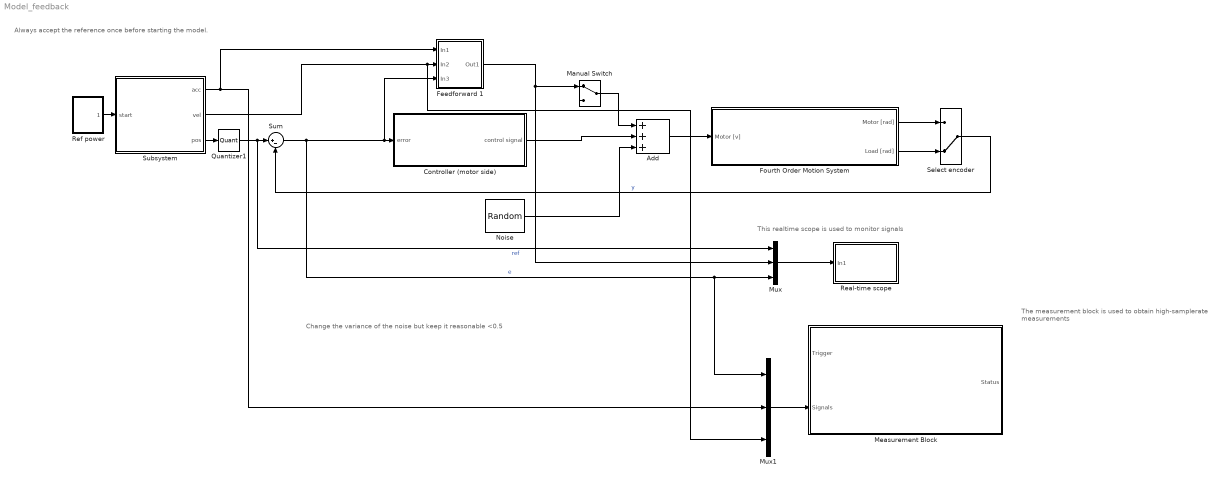
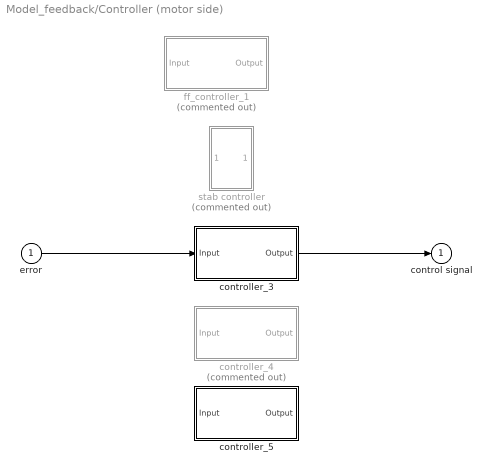
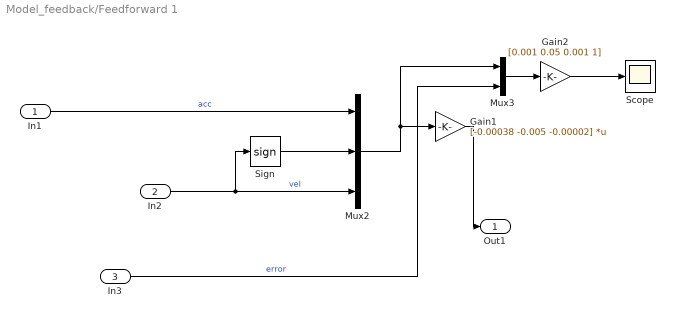
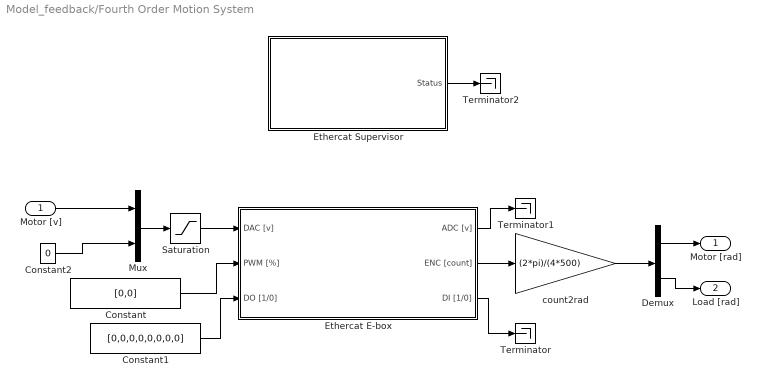
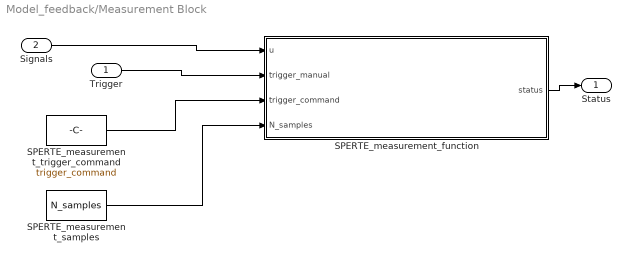
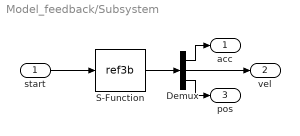
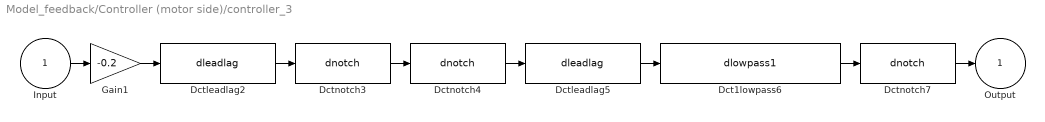
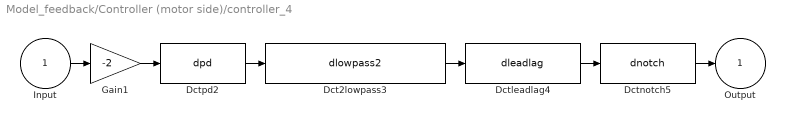
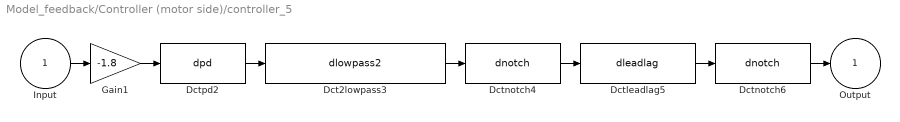
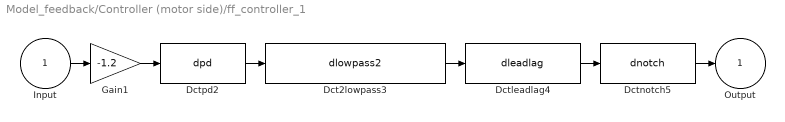
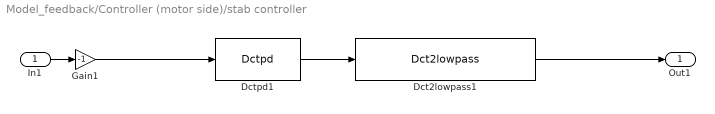
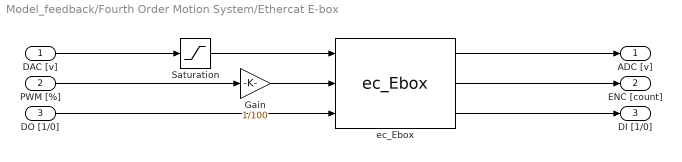
== system Model_feedback/Real-time scope ==
  note: The default scope sample rate is 500 Hz. This can be changed by right-click on the Realtime Scope block. Then selecting -> Mask -> Mask parameters.
  In1 : Inport
  Buffer : SignalConversion  OverrideOpt=off
  Downsample : RateTransition  OutPortSampleTime=Sample_Time
  Live_Scope : Scope
  wires:
  In1/1 -> Buffer/1
  Downsample/1 -> Live_Scope/1
  Buffer/1 -> Downsample/1

== system Model_feedback/Ref power ==
  Start setpoint : Constant  Value=stat
  On/Off : Outport
  wires:
  Start setpoint/1 -> On/Off/1

== system Model_feedback/Fourth Order Motion System/Ethercat Supervisor ==
  note: Status, 0 = Operational, 1 = error
  S-Function : S-Function  FunctionName=ec_Supervisor  Parameters=portid,ectimeout  SFunctionDeploymentMode=off  EnableBusSupport=off
  Status : Outport
  wires:
  S-Function/1 -> Status/1

== matlab function Model_feedback/Measurement Block/SPERTE_measurement_function ==
function status = perform_measurement(u, trigger_manual, trigger_command, triggertype, N_samples)

%% Persistent variables
persistent fileID NF busy NS

% Init parameters
if isempty(NF)
    NF = int16(0);
end
if isempty(NS)
    NS = uint32(0);
end
if isempty(fileID)
    fileID = 0;
end
if isempty(busy)
    busy = uint8(0);
end

%% Check the triggers
if ( (triggertype == 0 && trigger_manual == 1) || (triggertype == 1 && trigger_command == 1) || (triggertype == 2 && (trigger_command == 1 || trigger_manual == 1) ) )
    if busy == 1
        % We are already busy, nothing to do
    else
        % We should start a new one
        fileID = fopen(sprintf('measurement_%d.bin',NF),'w');  
        NF = NF + 1;
        busy = uint8(1);
        NS = uint32(0);
    end
end

% We have started a measurement
if busy == 1
    if NS < N_samples 
        % Here we write the sample, in single precision float
        fwrite(fileID,u,'single');
        NS = NS + uint32(1);
    else
       % We have N samples already, we are done
       fclose(fileID);
       busy = uint8(0);
       NS = uint32(0);
    end
      
end
    % Output state
    status = uint8(busy);
end

/*
 * Model_feedback.c
 *
 * Academic License - for use in teaching, academic research, and meeting
 * course requirements at degree granting institutions only.  Not for
 * government, commercial, or other organizational use.
 *
 * Code generation for model "Model_feedback".
 *
 * Model version              : 9.14
 * Simulink Coder version : 9.8 (R2022b) 13-May-2022
 * C source code generated on : Fri Mar 21 13:16:35 2025
 *
 * Target selection: ert.tlc
 * Note: GRT includes extra infrastructure and instrumentation for prototyping
 * Embedded hardware selection: ARM Compatible->ARM Cortex
 * Code generation objectives: Unspecified
 * Validation result: Not run
 */

#include "Model_feedback.h"
#include "Model_feedback_types.h"
#include "rtwtypes.h"
#include <string.h>
#include <math.h>
#include "rt_nonfinite.h"
#include "Model_feedback_private.h"
#include <stdio.h>
#include <stddef.h>
#include <stdlib.h>
#include "Model_feedback_dt.h"

/* Block signals (default storage) */
B_Model_feedback_T Model_feedback_B;

/* Block states (default storage) */
DW_Model_feedback_T Model_feedback_DW;

/* Real-time model */
static RT_MODEL_Model_feedback_T Model_feedback_M_;
RT_MODEL_Model_feedback_T *const Model_feedback_M = &Model_feedback_M_;

/* Forward declaration for local functions */
static void Model_feedback_emxInit_char_T(emxArray_char_T_Model_feedbac_T
  **pEmxArray, int32_T numDimensions);
static void Model__emxEnsureCapacity_char_T(emxArray_char_T_Model_feedbac_T
  *emxArray, int32_T oldNumel);
static void Model_feedback_emxFree_char_T(emxArray_char_T_Model_feedbac_T
  **pEmxArray);
static int8_T Model_feedback_filedata(void);
static int8_T Model_feedback_cfopen(const emxArray_char_T_Model_feedbac_T
  *cfilename, const char_T *cpermission);
static int32_T Model_feedback_cfclose(real_T fid);
static void rate_monotonic_scheduler(void);

/*
 * Set which subrates need to run this base step (base rate always runs).
 * This function must be called prior to calling the model step function
 * in order to remember which rates need to run this base step.  The
 * buffering of events allows for overlapping preemption.
 */
void Model_feedback_SetEventsForThisBaseStep(boolean_T *eventFlags)
{
  /* Task runs when its counter is zero, computed via rtmStepTask macro */
  eventFlags[2] = ((boolean_T)rtmStepTask(Model_feedback_M, 2));
}

/*
 *         This function updates active task flag for each subrate
 *         and rate transition flags for tasks that exchange data.
 *         The function assumes rate-monotonic multitasking scheduler.
 *         The function must be called at model base rate so that
 *         the generated code self-manages all its subrates and rate
 *         transition flags.
 */
static void rate_monotonic_scheduler(void)
{
  /* To ensure a deterministic data transfer between two rates,
   * data is transferred at the priority of a fast task and the frequency
   * of the slow task.  The following flags indicate when the data transfer
   * happens.  That is, a rate interaction flag is set true when both rates
   * will run, and false otherwise.
   */

  /* tid 1 shares data with slower tid rate: 2 */
  if (Model_feedback_M->Timing.TaskCounters.TID[1] == 0) {
    Model_feedback_M->Timing.RateInteraction.TID1_2 =
      (Model_feedback_M->Timing.TaskCounters.TID[2] == 0);

    /* update PerTaskSampleHits matrix for non-inline sfcn */
    Model_feedback_M->Timing.perTaskSampleHits[5] =
      Model_feedback_M->Timing.RateInteraction.TID1_2;
  }

  /* Compute which subrates run during the next base time step.  Subrates
   * are an integer multiple of the base rate counter.  Therefore, the subtask
   * counter is reset when it reaches its limit (zero means run).
   */
  (Model_feedback_M->Timing.TaskCounters.TID[2])++;
  if ((Model_feedback_M->Timing.TaskCounters.TID[2]) > 7) {/* Sample time: [0.002s, 0.0s] */
    Model_feedback_M->Timing.TaskCounters.TID[2] = 0;
  }
}

real_T rt_urand_Upu32_Yd_f_pw_snf(uint32_T *u)
{
  uint32_T hi;
  uint32_T lo;

  /* Uniform random number generator (random number between 0 and 1)

     #define IA      16807                      magic multiplier = 7^5
     #define IM      2147483647                 modulus = 2^31-1
     #define IQ      127773                     IM div IA
     #define IR      2836                       IM modulo IA
     #define S       4.656612875245797e-10      reciprocal of 2^31-1
     test = IA * (seed % IQ) - IR * (seed/IQ)
     seed = test < 0 ? (test + IM) : test
     return (seed*S)
   */
  lo = *u % 127773U * 16807U;
  hi = *u / 127773U * 2836U;
  if (lo < hi) {
    *u = 2147483647U - (hi - lo);
  } else {
    *u = lo - hi;
  }

  return (real_T)*u * 4.6566128752457969E-10;
}

real_T rt_nrand_Upu32_Yd_f_pw_snf(uint32_T *u)
{
  real_T si;
  real_T sr;
  real_T y;

  /* Normal (Gaussian) random number generator */
  do {
    sr = 2.0 * rt_urand_Upu32_Yd_f_pw_snf(u) - 1.0;
    si = 2.0 * rt_urand_Upu32_Yd_f_pw_snf(u) - 1.0;
    si = sr * sr + si * si;
  } while (si > 1.0);

  y = sqrt(-2.0 * log(si) / si) * sr;
  return y;
}

real_T rt_roundd_snf(real_T u)
{
  real_T y;
  if (fabs(u) < 4.503599627370496E+15) {
    if (u >= 0.5) {
      y = floor(u + 0.5);
    } else if (u > -0.5) {
      y = u * 0.0;
    } else {
      y = ceil(u - 0.5);
    }
  } else {
    y = u;
  }

  return y;
}

static void Model_feedback_emxInit_char_T(emxArray_char_T_Model_feedbac_T
  **pEmxArray, int32_T numDimensions)
{
  emxArray_char_T_Model_feedbac_T *emxArray;
  int32_T i;
  *pEmxArray = (emxArray_char_T_Model_feedbac_T *)malloc(sizeof
    (emxArray_char_T_Model_feedbac_T));
  emxArray = *pEmxArray;
  emxArray->data = (char_T *)NULL;
  emxArray->numDimensions = numDimensions;
  emxArray->size = (int32_T *)malloc(sizeof(int32_T) * (uint32_T)numDimensions);
  emxArray->allocatedSize = 0;
  emxArray->canFreeData = true;
  for (i = 0; i < numDimensions; i++) {
    emxArray->size[i] = 0;
  }
}

static void Model__emxEnsureCapacity_char_T(emxArray_char_T_Model_feedbac_T
  *emxArray, int32_T oldNumel)
{
  int32_T i;
  int32_T newNumel;
  void *newData;
  if (oldNumel < 0) {
    oldNumel = 0;
  }

  newNumel = 1;
  for (i = 0; i < emxArray->numDimensions; i++) {
    newNumel *= emxArray->size[i];
  }

  if (newNumel > emxArray->allocatedSize) {
    i = emxArray->allocatedSize;
    if (i < 16) {
      i = 16;
    }

    while (i < newNumel) {
      if (i > 1073741823) {
        i = MAX_int32_T;
      } else {
        i <<= 1;
      }
    }

    newData = calloc((uint32_T)i, sizeof(char_T));
    if (emxArray->data != NULL) {
      memcpy(newData, emxArray->data, sizeof(char_T) * (uint32_T)oldNumel);
      if (emxArray->canFreeData) {
        free(emxArray->data);
      }
    }

    emxArray->data = (char_T *)newData;
    emxArray->allocatedSize = i;
    emxArray->canFreeData = true;
  }
}

static void Model_feedback_emxFree_char_T(emxArray_char_T_Model_feedbac_T
  **pEmxArray)
{
  if (*pEmxArray != (emxArray_char_T_Model_feedbac_T *)NULL) {
    if (((*pEmxArray)->data != (char_T *)NULL) && (*pEmxArray)->canFreeData) {
      free((*pEmxArray)->data);
    }

    free((*pEmxArray)->size);
    free(*pEmxArray);
    *pEmxArray = (emxArray_char_T_Model_feedbac_T *)NULL;
  }
}

/* Function for MATLAB Function: '<S4>/SPERTE_measurement_function' */
static int8_T Model_feedback_filedata(void)
{
  int32_T k;
  int8_T f;
  boolean_T exitg1;
  f = 0;
  k = 1;
  exitg1 = false;
  while ((!exitg1) && (k - 1 < 20)) {
    if (Model_feedback_DW.eml_openfiles[(int8_T)k - 1] == NULL) {
      f = (int8_T)k;
      exitg1 = true;
    } else {
      k++;
    }
  }

  return f;
}

/* Function for MATLAB Function: '<S4>/SPERTE_measurement_function' */
static int8_T Model_feedback_cfopen(const emxArray_char_T_Model_feedbac_T
  *cfilename, const char_T *cpermission)
{
  emxArray_char_T_Model_feedbac_T *ccfilename;
  int32_T loop_ub;
  int8_T fileid;
  int8_T j;
  fileid = -1;
  j = Model_feedback_filedata();
  if (j >= 1) {
    Model_feedback_emxInit_char_T(&ccfilename, 2);
    loop_ub = ccfilename->size[0] * ccfilename->size[1];
    ccfilename->size[0] = 1;
    ccfilename->size[1] = cfilename->size[1] + 1;
    Model__emxEnsureCapacity_char_T(ccfilename, loop_ub);
    loop_ub = cfilename->size[1];
    if (loop_ub - 1 >= 0) {
      memcpy(&ccfilename->data[0], &cfilename->data[0], (uint32_T)loop_ub *
             sizeof(char_T));
    }

    ccfilename->data[cfilename->size[1]] = '\x00';
    Model_feedback_B.filestar_m = fopen(&ccfilename->data[0], cpermission);
    Model_feedback_emxFree_char_T(&ccfilename);
    if (Model_feedback_B.filestar_m != NULL) {
      Model_feedback_DW.eml_openfiles[j - 1] = Model_feedback_B.filestar_m;
      Model_feedback_DW.eml_autoflush[j - 1] = true;
      loop_ub = j + 2;
      if (j + 2 > 127) {
        loop_ub = 127;
      }

      fileid = (int8_T)loop_ub;
    }
  }

  return fileid;
}

/* Function for MATLAB Function: '<S4>/SPERTE_measurement_function' */
static int32_T Model_feedback_cfclose(real_T fid)
{
  FILE* filestar;
  int32_T cst;
  int32_T st;
  int8_T b_fileid;
  int8_T fileid;
  st = -1;
  fileid = (int8_T)fid;
  if (((int8_T)fid < 0) || (fid != (int8_T)fid)) {
    fileid = -1;
  }

  b_fileid = fileid;
  if (fileid < 0) {
    b_fileid = -1;
  }

  if (b_fileid >= 3) {
    filestar = Model_feedback_DW.eml_openfiles[b_fileid - 3];
  } else if (b_fileid == 0) {
    filestar = stdin;
  } else if (b_fileid == 1) {
    filestar = stdout;
  } else if (b_fileid == 2) {
    filestar = stderr;
  } else {
    filestar = NULL;
  }

  if ((filestar != NULL) && (fileid >= 3)) {
    cst = fclose(filestar);
    if (cst == 0) {
      st = 0;
      Model_feedback_DW.eml_openfiles[fileid - 3] = NULL;
      Model_feedback_DW.eml_autoflush[fileid - 3] = true;
    }
  }

  return st;
}

/* Model step function for TID0 */
void Model_feedback_step0(void)        /* Sample time: [0.0s, 0.0s] */
{
  emxArray_char_T_Model_feedbac_T *str;
  emxArray_char_T_Model_feedbac_T *str_0;
  int32_T nbytes;
  int32_T tmp;
  uint32_T qY;
  int8_T b_fileid;
  boolean_T autoflush;

  {                                    /* Sample time: [0.0s, 0.0s] */
    rate_monotonic_scheduler();
  }

  /* Constant: '<S6>/Start setpoint' */
  Model_feedback_B.Startsetpoint = Model_feedback_P.Refpower_stat;

  /* S-Function (ref3b): '<S7>/S-Function' */

  /* Level2 S-Function Block: '<S7>/S-Function' (ref3b) */
  {
    SimStruct *rts = Model_feedback_M->childSfunctions[0];
    sfcnOutputs(rts,0);
  }

  /* Quantizer: '<Root>/Quantizer1' */
  Model_feedback_B.ref = rt_roundd_snf(Model_feedback_B.SFunction[2] /
    Model_feedback_P.Quantizer1_Interval) * Model_feedback_P.Quantizer1_Interval;

  /* S-Function (ec_Supervisor): '<S11>/S-Function' */

  /* Level2 S-Function Block: '<S11>/S-Function' (ec_Supervisor) */
  {
    SimStruct *rts = Model_feedback_M->childSfunctions[1];
    sfcnOutputs(rts,0);
  }

  /* S-Function (ec_Ebox): '<S10>/ec_Ebox' */

  /* Level2 S-Function Block: '<S10>/ec_Ebox' (ec_Ebox) */
  {
    SimStruct *rts = Model_feedback_M->childSfunctions[2];
    sfcnOutputs(rts,0);
  }

  /* ManualSwitch: '<Root>/Select encoder' incorporates:
   *  Gain: '<S3>/count2rad'
   */
  if (Model_feedback_P.Selectencoder_CurrentSetting == 1) {
    Model_feedback_B.Sign = Model_feedback_P.count2rad_Gain *
      Model_feedback_B.ec_Ebox_o2[0];
  } else {
    Model_feedback_B.Sign = Model_feedback_P.count2rad_Gain *
      Model_feedback_B.ec_Ebox_o2[1];
  }

  /* Sum: '<Root>/Sum' incorporates:
   *  ManualSwitch: '<Root>/Select encoder'
   */
  Model_feedback_B.e = Model_feedback_B.ref - Model_feedback_B.Sign;

  /* MATLAB Function: '<S4>/SPERTE_measurement_function' incorporates:
   *  Constant: '<S4>/SPERTE_measurement_samples'
   *  Constant: '<S4>/SPERTE_measurement_trigger_command'
   *  SignalConversion generated from: '<S12>/ SFunction '
   */
  if ((((Model_feedback_P.MeasurementBlock_triggertype == 1) &&
        (Model_feedback_P.MeasurementBlock_trigger_comman == 1)) ||
       ((Model_feedback_P.MeasurementBlock_triggertype == 2) &&
        (Model_feedback_P.MeasurementBlock_trigger_comman == 1))) &&
      (Model_feedback_DW.busy != 1)) {
    nbytes = (int32_T)snprintf(NULL, 0, "measurement_%d.bin",
      Model_feedback_DW.NF) + 1;
    Model_feedback_emxInit_char_T(&str, 2);
    tmp = str->size[0] * str->size[1];
    str->size[0] = 1;
    str->size[1] = nbytes;
    Model__emxEnsureCapacity_char_T(str, tmp);
    snprintf(&str->data[0], (size_t)nbytes, "measurement_%d.bin",
             Model_feedback_DW.NF);
    if (nbytes - 1 < 1) {
      nbytes = -1;
    } else {
      nbytes -= 2;
    }

    Model_feedback_emxInit_char_T(&str_0, 2);
    tmp = str_0->size[0] * str_0->size[1];
    str_0->size[0] = 1;
    str_0->size[1] = nbytes + 1;
    Model__emxEnsureCapacity_char_T(str_0, tmp);
    if (nbytes >= 0) {
      memcpy(&str_0->data[0], &str->data[0], (uint32_T)(nbytes + 1) * sizeof
             (char_T));
    }

    Model_feedback_emxFree_char_T(&str);
    b_fileid = Model_feedback_cfopen(str_0, "wb");
    Model_feedback_emxFree_char_T(&str_0);
    Model_feedback_DW.fileID = b_fileid;
    nbytes = Model_feedback_DW.NF + 1;
    if (Model_feedback_DW.NF + 1 > 32767) {
      nbytes = 32767;
    }

    Model_feedback_DW.NF = (int16_T)nbytes;
    Model_feedback_DW.busy = 1U;
    Model_feedback_DW.NS = 0U;
  }

  if (Model_feedback_DW.busy == 1) {
    if (Model_feedback_DW.NS < Model_feedback_P.MeasurementBlock_N_samples) {
      b_fileid = (int8_T)Model_feedback_DW.fileID;
      if (((int8_T)Model_feedback_DW.fileID < 0) || (Model_feedback_DW.fileID !=
           (int8_T)Model_feedback_DW.fileID)) {
        b_fileid = -1;
      }

      if (b_fileid >= 3) {
        Model_feedback_B.filestar = Model_feedback_DW.eml_openfiles[b_fileid - 3];
        autoflush = Model_feedback_DW.eml_autoflush[b_fileid - 3];
      } else if (b_fileid == 0) {
        Model_feedback_B.filestar = stdin;
        autoflush = true;
      } else if (b_fileid == 1) {
        Model_feedback_B.filestar = stdout;
        autoflush = true;
      } else if (b_fileid == 2) {
        Model_feedback_B.filestar = stderr;
        autoflush = true;
      } else {
        Model_feedback_B.filestar = NULL;
        autoflush = true;
      }

      if (!(Model_feedback_DW.fileID != 0.0)) {
        Model_feedback_B.filestar = NULL;
      }

      if (!(Model_feedback_B.filestar == NULL)) {
        Model_feedback_B.xout[0] = (real32_T)Model_feedback_B.e;
        Model_feedback_B.xout[1] = (real32_T)Model_feedback_B.SFunction[0];
        Model_feedback_B.xout[2] = (real32_T)Model_feedback_B.SFunction[1];
        Model_feedback_B.bytesOutSizet = fwrite(&Model_feedback_B.xout[0],
          sizeof(real32_T), (size_t)3, Model_feedback_B.filestar);
        if (((real_T)Model_feedback_B.bytesOutSizet > 0.0) && autoflush) {
          fflush(Model_feedback_B.filestar);
        }
      }

      qY = Model_feedback_DW.NS + 1U;
      if (Model_feedback_DW.NS + 1U < Model_feedback_DW.NS) {
        qY = MAX_uint32_T;
      }

      Model_feedback_DW.NS = qY;
    } else {
      Model_feedback_cfclose(Model_feedback_DW.fileID);
      Model_feedback_DW.busy = 0U;
      Model_feedback_DW.NS = 0U;
    }
  }

  /* End of MATLAB Function: '<S4>/SPERTE_measurement_function' */

  /* Signum: '<S2>/Sign' */
  if (rtIsNaN(Model_feedback_B.SFunction[1])) {
    Model_feedback_B.Sign = (rtNaN);
  } else if (Model_feedback_B.SFunction[1] < 0.0) {
    Model_feedback_B.Sign = -1.0;
  } else {
    Model_feedback_B.Sign = (Model_feedback_B.SFunction[1] > 0.0);
  }

  /* End of Signum: '<S2>/Sign' */

  /* Gain: '<S2>/Gain1' incorporates:
   *  SignalConversion generated from: '<S2>/Gain1'
   */
  Model_feedback_B.Gain1 = (Model_feedback_P.Gain1_Gain[0] *
    Model_feedback_B.SFunction[0] + Model_feedback_P.Gain1_Gain[1] *
    Model_feedback_B.Sign) + Model_feedback_B.SFunction[1] *
    Model_feedback_P.Gain1_Gain[2];

  /* RateTransition: '<S5>/Downsample' */
  if (Model_feedback_M->Timing.RateInteraction.TID1_2) {
    Model_feedback_DW.Downsample_Buffer[0] = Model_feedback_B.ref;
    Model_feedback_DW.Downsample_Buffer[1] = Model_feedback_B.Gain1;
    Model_feedback_DW.Downsample_Buffer[2] = Model_feedback_B.e;
  }

  /* End of RateTransition: '<S5>/Downsample' */

  /* Gain: '<S8>/Gain1' */
  Model_feedback_B.Gain1_p = Model_feedback_P.Gain1_Gain_a * Model_feedback_B.e;

  /* S-Function (dleadlag): '<S8>/Dctleadlag2' */

  /* Level2 S-Function Block: '<S8>/Dctleadlag2' (dleadlag) */
  {
    SimStruct *rts = Model_feedback_M->childSfunctions[3];
    sfcnOutputs(rts,0);
  }

  /* S-Function (dnotch): '<S8>/Dctnotch3' */

  /* Level2 S-Function Block: '<S8>/Dctnotch3' (dnotch) */
  {
    SimStruct *rts = Model_feedback_M->childSfunctions[4];
    sfcnOutputs(rts,0);
  }

  /* S-Function (dnotch): '<S8>/Dctnotch4' */

  /* Level2 S-Function Block: '<S8>/Dctnotch4' (dnotch) */
  {
    SimStruct *rts = Model_feedback_M->childSfunctions[5];
    sfcnOutputs(rts,0);
  }

  /* S-Function (dleadlag): '<S8>/Dctleadlag5' */

  /* Level2 S-Function Block: '<S8>/Dctleadlag5' (dleadlag) */
  {
    SimStruct *rts = Model_feedback_M->childSfunctions[6];
    sfcnOutputs(rts,0);
  }

  /* S-Function (dlowpass1): '<S8>/Dct1lowpass6' */

  /* Level2 S-Function Block: '<S8>/Dct1lowpass6' (dlowpass1) */
  {
    SimStruct *rts = Model_feedback_M->childSfunctions[7];
    sfcnOutputs(rts,0);
  }

  /* S-Function (dnotch): '<S8>/Dctnotch7' */

  /* Level2 S-Function Block: '<S8>/Dctnotch7' (dnotch) */
  {
    SimStruct *rts = Model_feedback_M->childSfunctions[8];
    sfcnOutputs(rts,0);
  }

  /* RandomNumber: '<Root>/Noise' */
  Model_feedback_B.Noise = Model_feedback_DW.NextOutput;

  /* Gain: '<S9>/Gain1' */
  Model_feedback_B.Gain1_l = Model_feedback_P.Gain1_Gain_f * 0.0;

  /* S-Function (dpd): '<S9>/Dctpd2' */

  /* Level2 S-Function Block: '<S9>/Dctpd2' (dpd) */
  {
    SimStruct *rts = Model_feedback_M->childSfunctions[9];
    sfcnOutputs(rts,0);
  }

  /* S-Function (dlowpass2): '<S9>/Dct2lowpass3' */

  /* Level2 S-Function Block: '<S9>/Dct2lowpass3' (dlowpass2) */
  {
    SimStruct *rts = Model_feedback_M->childSfunctions[10];
    sfcnOutputs(rts,0);
  }

  /* S-Function (dnotch): '<S9>/Dctnotch4' */

  /* Level2 S-Function Block: '<S9>/Dctnotch4' (dnotch) */
  {
    SimStruct *rts = Model_feedback_M->childSfunctions[11];
    sfcnOutputs(rts,0);
  }

  /* S-Function (dleadlag): '<S9>/Dctleadlag5' */

  /* Level2 S-Function Block: '<S9>/Dctleadlag5' (dleadlag) */
  {
    SimStruct *rts = Model_feedback_M->childSfunctions[12];
    sfcnOutputs(rts,0);
  }

  /* S-Function (dnotch): '<S9>/Dctnotch6' */

  /* Level2 S-Function Block: '<S9>/Dctnotch6' (dnotch) */
  {
    SimStruct *rts = Model_feedback_M->childSfunctions[13];
    sfcnOutputs(rts,0);
  }

  /* Gain: '<S2>/Gain2' */
  Model_feedback_B.Gain2[0] = Model_feedback_P.Gain2_Gain[0] *
    Model_feedback_B.SFunction[0];
  Model_feedback_B.Gain2[1] = Model_feedback_P.Gain2_Gain[1] *
    Model_feedback_B.Sign;
  Model_feedback_B.Gain2[2] = Model_feedback_B.SFunction[1] *
    Model_feedback_P.Gain2_Gain[2];
  Model_feedback_B.Gain2[3] = Model_feedback_P.Gain2_Gain[3] *
    Model_feedback_B.e;

  /* Constant: '<S3>/Constant1' */
  memcpy(&Model_feedback_B.Constant1[0], &Model_feedback_P.Constant1_Value[0],
         sizeof(real_T) << 3U);

  /* Gain: '<S10>/Gain' incorporates:
   *  Constant: '<S3>/Constant'
   */
  Model_feedback_B.Gain[0] = Model_feedback_P.Gain_Gain *
    Model_feedback_P.Constant_Value[0];
  Model_feedback_B.Gain[1] = Model_feedback_P.Gain_Gain *
    Model_feedback_P.Constant_Value[1];

  /* ManualSwitch: '<Root>/Manual Switch' */
  if (Model_feedback_P.ManualSwitch_CurrentSetting == 1) {
    Model_feedback_B.Sign = Model_feedback_B.Gain1;
  } else {
    Model_feedback_B.Sign = 0.0;
  }

  /* Sum: '<Root>/Add' incorporates:
   *  ManualSwitch: '<Root>/Manual Switch'
   */
  Model_feedback_B.Sign = (Model_feedback_B.Sign + Model_feedback_B.Dctnotch7) +
    Model_feedback_B.Noise;

  /* Saturate: '<S3>/Saturation' */
  if (Model_feedback_B.Sign > Model_feedback_P.Saturation_UpperSat) {
    Model_feedback_B.Sign = Model_feedback_P.Saturation_UpperSat;
  } else if (Model_feedback_B.Sign < Model_feedback_P.Saturation_LowerSat) {
    Model_feedback_B.Sign = Model_feedback_P.Saturation_LowerSat;
  }

  /* Saturate: '<S10>/Saturation' */
  if (Model_feedback_B.Sign > Model_feedback_P.Saturation_UpperSat_d) {
    /* Saturate: '<S10>/Saturation' */
    Model_feedback_B.Saturation[0] = Model_feedback_P.Saturation_UpperSat_d;
  } else if (Model_feedback_B.Sign < Model_feedback_P.Saturation_LowerSat_e) {
    /* Saturate: '<S10>/Saturation' */
    Model_feedback_B.Saturation[0] = Model_feedback_P.Saturation_LowerSat_e;
  } else {
    /* Saturate: '<S10>/Saturation' */
    Model_feedback_B.Saturation[0] = Model_feedback_B.Sign;
  }

  /* Saturate: '<S3>/Saturation' incorporates:
   *  Constant: '<S3>/Constant2'
   */
  if (Model_feedback_P.Constant2_Value > Model_feedback_P.Saturation_UpperSat) {
    Model_feedback_B.Sign = Model_feedback_P.Saturation_UpperSat;
  } else if (Model_feedback_P.Constant2_Value <
             Model_feedback_P.Saturation_LowerSat) {
    Model_feedback_B.Sign = Model_feedback_P.Saturation_LowerSat;
  } else {
    Model_feedback_B.Sign = Model_feedback_P.Constant2_Value;
  }

  /* Saturate: '<S10>/Saturation' */
  if (Model_feedback_B.Sign > Model_feedback_P.Saturation_UpperSat_d) {
    /* Saturate: '<S10>/Saturation' */
    Model_feedback_B.Saturation[1] = Model_feedback_P.Saturation_UpperSat_d;
  } else if (Model_feedback_B.Sign < Model_feedback_P.Saturation_LowerSat_e) {
    /* Saturate: '<S10>/Saturation' */
    Model_feedback_B.Saturation[1] = Model_feedback_P.Saturation_LowerSat_e;
  } else {
    /* Saturate: '<S10>/Saturation' */
    Model_feedback_B.Saturation[1] = Model_feedback_B.Sign;
  }

  /* Update for RandomNumber: '<Root>/Noise' */
  Model_feedback_DW.NextOutput = rt_nrand_Upu32_Yd_f_pw_snf
    (&Model_feedback_DW.RandSeed) * Model_feedback_P.Noise_StdDev +
    Model_feedback_P.Noise_Mean;

  /* External mode */
  rtExtModeUploadCheckTrigger(3);
  rtExtModeUpload(1, (real_T)Model_feedback_M->Timing.t[0]);

  /* signal main to stop simulation */
  {                                    /* Sample time: [0.0s, 0.0s] */
    if ((rtmGetTFinal(Model_feedback_M)!=-1) &&
        !((rtmGetTFinal(Model_feedback_M)-Model_feedback_M->Timing.t[0]) >
          Model_feedback_M->Timing.t[0] * (DBL_EPSILON))) {
      rtmSetErrorStatus(Model_feedback_M, "Simulation finished");
    }

    if (rtmGetStopRequested(Model_feedback_M)) {
      rtmSetErrorStatus(Model_feedback_M, "Simulation finished");
    }
  }

  /* Update absolute time */
  /* The "clockTick0" counts the number of times the code of this task has
   * been executed. The absolute time is the multiplication of "clockTick0"
   * and "Timing.stepSize0". Size of "clockTick0" ensures timer will not
   * overflow during the application lifespan selected.
   * Timer of this task consists of two 32 bit unsigned integers.
   * The two integers represent the low bits Timing.clockTick0 and the high bits
   * Timing.clockTickH0. When the low bit overflows to 0, the high bits increment.
   */
  if (!(++Model_feedback_M->Timing.clockTick0)) {
    ++Model_feedback_M->Timing.clockTickH0;
  }

  Model_feedback_M->Timing.t[0] = Model_feedback_M->Timing.clockTick0 *
    Model_feedback_M->Timing.stepSize0 + Model_feedback_M->Timing.clockTickH0 *
    Model_feedback_M->Timing.stepSize0 * 4294967296.0;

  /* Update absolute time */
  /* The "clockTick1" counts the number of times the code of this task has
   * been executed. The absolute time is the multiplication of "clockTick1"
   * and "Timing.stepSize1". Size of "clockTick1" ensures timer will not
   * overflow during the application lifespan selected.
   * Timer of this task consists of two 32 bit unsigned integers.
   * The two integers represent the low bits Timing.clockTick1 and the high bits
   * Timing.clockTickH1. When the low bit overflows to 0, the high bits increment.
   */
  if (!(++Model_feedback_M->Timing.clockTick1)) {
    ++Model_feedback_M->Timing.clockTickH1;
  }

  Model_feedback_M->Timing.t[1] = Model_feedback_M->Timing.clockTick1 *
    Model_feedback_M->Timing.stepSize1 + Model_feedback_M->Timing.clockTickH1 *
    Model_feedback_M->Timing.stepSize1 * 4294967296.0;
}

/* Model step function for TID2 */
void Model_feedback_step2(void)        /* Sample time: [0.002s, 0.0s] */
{
  /* RateTransition: '<S5>/Downsample' */
  Model_feedback_B.Downsample[0] = Model_feedback_DW.Downsample_Buffer[0];
  Model_feedback_B.Downsample[1] = Model_feedback_DW.Downsample_Buffer[1];
  Model_feedback_B.Downsample[2] = Model_feedback_DW.Downsample_Buffer[2];
  rtExtModeUpload(2, (real_T)(((Model_feedback_M->Timing.clockTick2+
    Model_feedback_M->Timing.clockTickH2* 4294967296.0)) * 0.002));

  /* Update absolute time */
  /* The "clockTick2" counts the number of times the code of this task has
   * been executed. The resolution of this integer timer is 0.002, which is the step size
   * of the task. Size of "clockTick2" ensures timer will not overflow during the
   * application lifespan selected.
   * Timer of this task consists of two 32 bit unsigned integers.
   * The two integers represent the low bits Timing.clockTick2 and the high bits
   * Timing.clockTickH2. When the low bit overflows to 0, the high bits increment.
   */
  Model_feedback_M->Timing.clockTick2++;
  if (!Model_feedback_M->Timing.clockTick2) {
    Model_feedback_M->Timing.clockTickH2++;
  }
}

/* Use this function only if you need to maintain compatibility with an existing static main program. */
void Model_feedback_step(int_T tid)
{
  switch (tid) {
   case 0 :
    Model_feedback_step0();
    break;

   case 2 :
    Model_feedback_step2();
    break;

   default :
    /* do nothing */
    break;
  }
}
